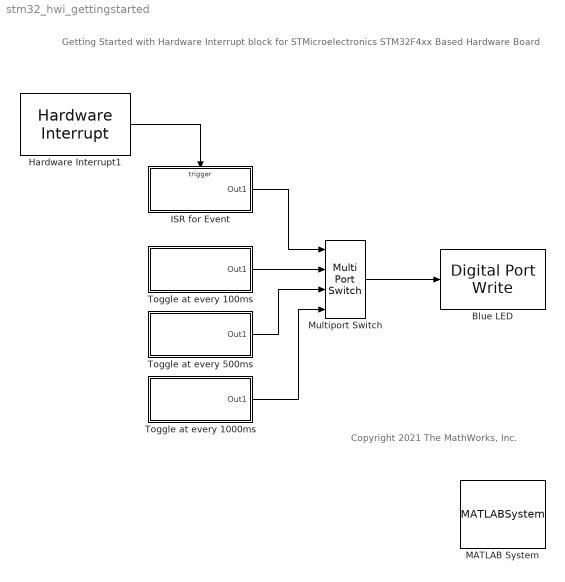
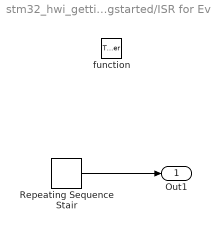
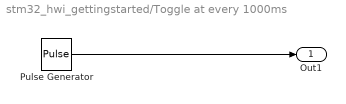
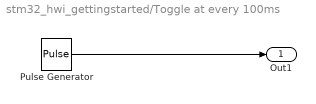
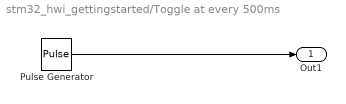
/*
 * Academic License - for use in teaching, academic research, and meeting
 * course requirements at degree granting institutions only.  Not for
 * government, commercial, or other organizational use.
 *
 * File: stm32_hwi_gettingstarted.c
 *
 * Code generated for Simulink model 'stm32_hwi_gettingstarted'.
 *
 * Model version                  : 7.5
 * Simulink Coder version         : 24.2 (R2024b) 21-Jun-2024
 * C/C++ source code generated on : Fri Feb  7 23:50:47 2025
 *
 * Target selection: ert.tlc
 * Embedded hardware selection: ARM Compatible->ARM Cortex
 * Code generation objectives: Unspecified
 * Validation result: Not run
 */

#include "stm32_hwi_gettingstarted.h"
#include "stm32_hwi_gettingstarted_private.h"
#include "rtwtypes.h"

/* Block signals (default storage) */
B_stm32_hwi_gettingstarted_T stm32_hwi_gettingstarted_B;

/* Block states (default storage) */
DW_stm32_hwi_gettingstarted_T stm32_hwi_gettingstarted_DW;

/* Real-time model */
static RT_MODEL_stm32_hwi_gettingsta_T stm32_hwi_gettingstarted_M_;
RT_MODEL_stm32_hwi_gettingsta_T *const stm32_hwi_gettingstarted_M =
  &stm32_hwi_gettingstarted_M_;
static void rate_monotonic_scheduler(void);

/*
 * Set which subrates need to run this base step (base rate always runs).
 * This function must be called prior to calling the model step function
 * in order to remember which rates need to run this base step.  The
 * buffering of events allows for overlapping preemption.
 */
void stm32_hwi_gettingstarted_SetEventsForThisBaseStep(boolean_T *eventFlags)
{
  /* Task runs when its counter is zero, computed via rtmStepTask macro */
  eventFlags[1] = ((boolean_T)rtmStepTask(stm32_hwi_gettingstarted_M, 1));
  eventFlags[2] = ((boolean_T)rtmStepTask(stm32_hwi_gettingstarted_M, 2));
}

/*
 *         This function updates active task flag for each subrate
 *         and rate transition flags for tasks that exchange data.
 *         The function assumes rate-monotonic multitasking scheduler.
 *         The function must be called at model base rate so that
 *         the generated code self-manages all its subrates and rate
 *         transition flags.
 */
static void rate_monotonic_scheduler(void)
{
  /* To ensure a deterministic data transfer between two rates,
   * data is transferred at the priority of a fast task and the frequency
   * of the slow task.  The following flags indicate when the data transfer
   * happens.  That is, a rate interaction flag is set true when both rates
   * will run, and false otherwise.
   */

  /* tid 0 shares data with slower tid rates: 1, 2 */
  stm32_hwi_gettingstarted_M->Timing.RateInteraction.TID0_1 =
    (stm32_hwi_gettingstarted_M->Timing.TaskCounters.TID[1] == 0);
  stm32_hwi_gettingstarted_M->Timing.RateInteraction.TID0_2 =
    (stm32_hwi_gettingstarted_M->Timing.TaskCounters.TID[2] == 0);

  /* Compute which subrates run during the next base time step.  Subrates
   * are an integer multiple of the base rate counter.  Therefore, the subtask
   * counter is reset when it reaches its limit (zero means run).
   */
  (stm32_hwi_gettingstarted_M->Timing.TaskCounters.TID[1])++;
  if ((stm32_hwi_gettingstarted_M->Timing.TaskCounters.TID[1]) > 4) {/* Sample time: [0.5s, 0.0s] */
    stm32_hwi_gettingstarted_M->Timing.TaskCounters.TID[1] = 0;
  }

  (stm32_hwi_gettingstarted_M->Timing.TaskCounters.TID[2])++;
  if ((stm32_hwi_gettingstarted_M->Timing.TaskCounters.TID[2]) > 9) {/* Sample time: [1.0s, 0.0s] */
    stm32_hwi_gettingstarted_M->Timing.TaskCounters.TID[2] = 0;
  }
}

/* Model step function for TID0 */
void stm32_hwi_gettingstarted_step0(void) /* Sample time: [0.1s, 0.0s] */
{
  GPIO_TypeDef * portNameLoc;
  real_T rtb_PulseGenerator;
  real_T rtb_TmpRTBAtISRforEventOutport1;
  int32_T c;

  {                                    /* Sample time: [0.1s, 0.0s] */
    rate_monotonic_scheduler();
  }

  /* DiscretePulseGenerator: '<S5>/Pulse Generator' */
  rtb_PulseGenerator = (stm32_hwi_gettingstarted_DW.clockTickCounter <
                        stm32_hwi_gettingstarted_P.PulseGenerator_Duty) &&
    (stm32_hwi_gettingstarted_DW.clockTickCounter >= 0) ?
    stm32_hwi_gettingstarted_P.PulseGenerator_Amp : 0.0;
  if (stm32_hwi_gettingstarted_DW.clockTickCounter >=
      stm32_hwi_gettingstarted_P.PulseGenerator_Period - 1.0) {
    stm32_hwi_gettingstarted_DW.clockTickCounter = 0;
  } else {
    stm32_hwi_gettingstarted_DW.clockTickCounter++;
  }

  /* End of DiscretePulseGenerator: '<S5>/Pulse Generator' */
  /* RateTransition generated from: '<Root>/ISR for Event' */
  rtb_TmpRTBAtISRforEventOutport1 = stm32_hwi_gettingstarted_B.Out;

  /* RateTransition generated from: '<Root>/Multiport Switch' */
  if (stm32_hwi_gettingstarted_M->Timing.RateInteraction.TID0_1) {
    /* RateTransition generated from: '<Root>/Multiport Switch' */
    stm32_hwi_gettingstarted_B.TmpRTBAtMultiportSwitchInport3 =
      stm32_hwi_gettingstarted_DW.TmpRTBAtMultiportSwitchInport3_;
  }

  /* End of RateTransition generated from: '<Root>/Multiport Switch' */

  /* RateTransition generated from: '<Root>/Multiport Switch' */
  if (stm32_hwi_gettingstarted_M->Timing.RateInteraction.TID0_2) {
    /* RateTransition generated from: '<Root>/Multiport Switch' */
    stm32_hwi_gettingstarted_B.TmpRTBAtMultiportSwitchInport4 =
      stm32_hwi_gettingstarted_DW.TmpRTBAtMultiportSwitchInport4_;
  }

  /* End of RateTransition generated from: '<Root>/Multiport Switch' */

  /* MultiPortSwitch: '<Root>/Multiport Switch' */
  switch ((int32_T)rtb_TmpRTBAtISRforEventOutport1) {
   case 0:
    break;

   case 1:
    rtb_PulseGenerator =
      stm32_hwi_gettingstarted_B.TmpRTBAtMultiportSwitchInport3;
    break;

   default:
    rtb_PulseGenerator =
      stm32_hwi_gettingstarted_B.TmpRTBAtMultiportSwitchInport4;
    break;
  }

  /* End of MultiPortSwitch: '<Root>/Multiport Switch' */

  /* MATLABSystem: '<S8>/Digital Port Write' */
  portNameLoc = GPIOA;
  if (rtb_PulseGenerator != 0.0) {
    c = 32;
  } else {
    c = 0;
  }

  LL_GPIO_SetOutputPin(portNameLoc, (uint32_T)c);
  LL_GPIO_ResetOutputPin(portNameLoc, ~(uint32_T)c & 32U);

  /* End of MATLABSystem: '<S8>/Digital Port Write' */

  /* MATLABSystem: '<Root>/MATLAB System' */
  /*         %% Define input properties */
  /*  Call C-function implementing device output */
  BlinkWrapper_Step();
}

/* Model step function for TID1 */
void stm32_hwi_gettingstarted_step1(void) /* Sample time: [0.5s, 0.0s] */
{
  real_T rtb_PulseGenerator;

  /* DiscretePulseGenerator: '<S6>/Pulse Generator' */
  rtb_PulseGenerator = (stm32_hwi_gettingstarted_DW.clockTickCounter_b <
                        stm32_hwi_gettingstarted_P.PulseGenerator_Duty_j) &&
    (stm32_hwi_gettingstarted_DW.clockTickCounter_b >= 0) ?
    stm32_hwi_gettingstarted_P.PulseGenerator_Amp_i : 0.0;
  if (stm32_hwi_gettingstarted_DW.clockTickCounter_b >=
      stm32_hwi_gettingstarted_P.PulseGenerator_Period_p - 1.0) {
    stm32_hwi_gettingstarted_DW.clockTickCounter_b = 0;
  } else {
    stm32_hwi_gettingstarted_DW.clockTickCounter_b++;
  }

  /* End of DiscretePulseGenerator: '<S6>/Pulse Generator' */

  /* RateTransition generated from: '<Root>/Multiport Switch' */
  stm32_hwi_gettingstarted_DW.TmpRTBAtMultiportSwitchInport3_ =
    rtb_PulseGenerator;
}

/* Model step function for TID2 */
void stm32_hwi_gettingstarted_step2(void) /* Sample time: [1.0s, 0.0s] */
{
  real_T rtb_PulseGenerator;

  /* DiscretePulseGenerator: '<S4>/Pulse Generator' */
  rtb_PulseGenerator = (stm32_hwi_gettingstarted_DW.clockTickCounter_c <
                        stm32_hwi_gettingstarted_P.PulseGenerator_Duty_a) &&
    (stm32_hwi_gettingstarted_DW.clockTickCounter_c >= 0) ?
    stm32_hwi_gettingstarted_P.PulseGenerator_Amp_m : 0.0;
  if (stm32_hwi_gettingstarted_DW.clockTickCounter_c >=
      stm32_hwi_gettingstarted_P.PulseGenerator_Period_m - 1.0) {
    stm32_hwi_gettingstarted_DW.clockTickCounter_c = 0;
  } else {
    stm32_hwi_gettingstarted_DW.clockTickCounter_c++;
  }

  /* End of DiscretePulseGenerator: '<S4>/Pulse Generator' */

  /* RateTransition generated from: '<Root>/Multiport Switch' */
  stm32_hwi_gettingstarted_DW.TmpRTBAtMultiportSwitchInport4_ =
    rtb_PulseGenerator;
}
